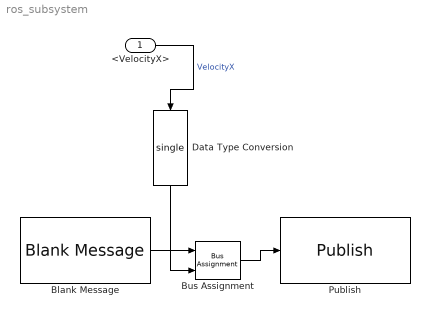
/*
 * ros_subsystem.c
 *
 * Academic License - for use in teaching, academic research, and meeting
 * course requirements at degree granting institutions only.  Not for
 * government, commercial, or other organizational use.
 *
 * Code generation for model "ros_subsystem".
 *
 * Model version              : 1.88
 * Simulink Coder version : 9.1 (R2019a) 23-Nov-2018
 * C source code generated on : Wed Nov 25 12:58:24 2020
 *
 * Target selection: ps.tlc
 * Note: GRT includes extra infrastructure and instrumentation for prototyping
 * Embedded hardware selection: Generic->Unspecified (assume 32-bit Generic)
 * Code generation objectives: Unspecified
 * Validation result: Not run
 */

#include "ros_subsystem_capi.h"
#include "ros_subsystem.h"
#include "ros_subsystem_private.h"

/* user code (top of source file) */
#include "ros_subsystem_prescan.h"

/* Block states (default storage) */
DW_ros_subsystem_T ros_subsystem_DW;

/* External inputs (root inport signals with default storage) */
ExtU_ros_subsystem_T ros_subsystem_U;

/* Real-time model */
RT_MODEL_ros_subsystem_T ros_subsystem_M_;
RT_MODEL_ros_subsystem_T *const ros_subsystem_M = &ros_subsystem_M_;

/* Forward declaration for local functions */
static void matlabCodegenHandle_matlabCodeg(robotics_slros_internal_block_T *obj);
static void matlabCodegenHandle_matlabCodeg(robotics_slros_internal_block_T *obj)
{
  if (!obj->matlabCodegenIsDeleted) {
    obj->matlabCodegenIsDeleted = true;
  }
}

/* Model output function */
static void ros_subsystem_output(void)
{
  SL_Bus_ros_subsystem_std_msgs_Float32 rtb_BusAssignment;

  /* BusAssignment: '<Root>/Bus Assignment' incorporates:
   *  DataTypeConversion: '<Root>/Data Type Conversion'
   *  Inport: '<Root>/<VelocityX>'
   */
  rtb_BusAssignment.Data = (real32_T)ros_subsystem_U.VelocityX;

  /* Outputs for Atomic SubSystem: '<Root>/Publish' */
  /* MATLABSystem: '<S2>/SinkBlock' */
  Pub_ros_subsystem_5.publish(&rtb_BusAssignment);

  /* End of Outputs for SubSystem: '<Root>/Publish' */
}

/* Model update function */
static void ros_subsystem_update(void)
{
  /* Update absolute time for base rate */
  /* The "clockTick0" counts the number of times the code of this task has
   * been executed. The absolute time is the multiplication of "clockTick0"
   * and "Timing.stepSize0". Size of "clockTick0" ensures timer will not
   * overflow during the application lifespan selected.
   * Timer of this task consists of two 32 bit unsigned integers.
   * The two integers represent the low bits Timing.clockTick0 and the high bits
   * Timing.clockTickH0. When the low bit overflows to 0, the high bits increment.
   */
  if (!(++ros_subsystem_M->Timing.clockTick0)) {
    ++ros_subsystem_M->Timing.clockTickH0;
  }

  ros_subsystem_M->Timing.t[0] = ros_subsystem_M->Timing.clockTick0 *
    ros_subsystem_M->Timing.stepSize0 + ros_subsystem_M->Timing.clockTickH0 *
    ros_subsystem_M->Timing.stepSize0 * 4294967296.0;
}
